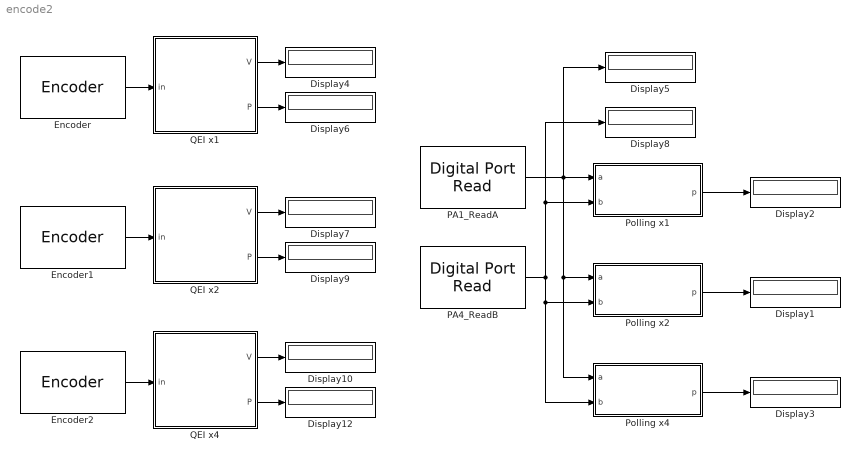
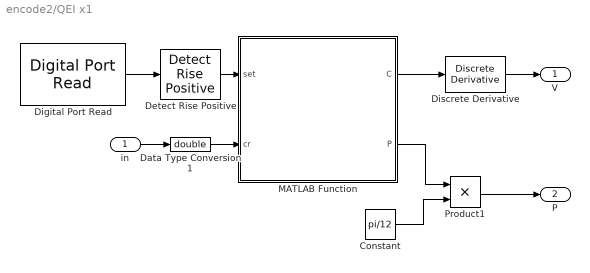
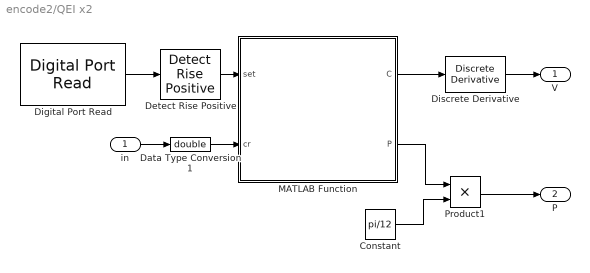
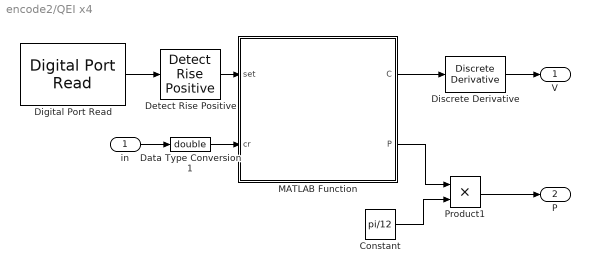
== matlab function encode2/Polling x2 ==
function p = fcn(a,b)
    persistent pos;
    persistent trig;
    if isempty(trig)
        trig = 1;
        pos = 0;
    end
    if a-b == -1 && trig
        pos = pos + 1;
        trig = 2;
    elseif a-b == 1 && trig
        pos = pos -1;
        trig = 2;
    end

    if a == 0 && b == 0 
        trig = 0;
    end

    if a-b == 1 && trig == 0
        pos = pos + 1;
        trig = -1;
    elseif a-b == -1 && trig == 0
        pos = pos -1;
        trig = 1;
    end

    if a == 1 && b == 1
        trig = 1;
    end
    p = pos;
end

== matlab function encode2/Polling x1 ==
function p = fcn(a,b)
    persistent pos;
    persistent trig;
    if isempty(trig)
        trig = 1;
        pos = 0;
    end
    if a-b == -1 && trig
        pos = pos + 1;
        trig = 0;
    elseif a-b == 1 && trig
        pos = pos -1;
        trig = 0;
    end

    if a == 1 && b == 1
        trig = 1;
    end
    p = pos;
end

== matlab function encode2/Polling x4 ==
function p = fcn(a,b)
    persistent pos;
    persistent trigA;
    persistent trigB;
    if isempty(trigA)
        trigA = 1;
        trigB = 1;
        pos = 0;
    end
    if a-b == -1 && trigA
        pos = pos + 1;
        trigA = 2;
    elseif a-b == 1 && trigA
        pos = pos -1;
        trigA = 2;
    end


    if a-b == -1 && trigA == 0
        pos = pos + 1;
        trigA = -1;
    elseif a-b == 1 && trigA == 0
        pos = pos -1;
        trigA = -1;
    end


    if b-a == 1 && trigB
        pos = pos + 1;
        trigB = 2;
    elseif b-a == -1 && trigB
        pos = pos - 1;
        trigB = 2;
    end

    if b-a == 1 && trigB == 0
        pos = pos + 1;
        trigB = -1;
    elseif b-a == -1 && trigB == 0
        pos = pos - 1;
        trigB = -1;
    end

    if a == 0 && b == 0
        trigA = 0;
        trigB = 0;
    end

    if a == 1 && b == 1
        trigA = 1;
        trigB = 1;
    end
    p = pos;
end

== matlab function encode2/QEI x1/MATLAB Function ==
function [C,P] = fcn(set,cr)
    persistent pr;
    persistent hom;
    persistent ps;
    max = 2048;

    if isempty(pr)
        pr = cr;
        hom = 0;
        ps = 0;
    end

    delta = cr - pr;

    if delta <= -1*(max/2)
        delta = delta + max + 1;
    elseif delta >= max/2
        delta = delta -max - 1;
    end

    if set
        hom = ps;
    end
    ps = ps + delta;
    C = ps - hom;
    pr = cr;
    P = C;
end

== matlab function encode2/QEI x2/MATLAB Function ==
function [C,P] = fcn(set,cr)
    persistent pr;
    persistent hom;
    persistent ps;
    max = 2048;

    if isempty(pr)
        pr = cr;
        hom = 0;
        ps = 0;
    end

    delta = cr - pr;

    if delta <= -1*(max/2)
        delta = delta + max + 1;
    elseif delta >= max/2
        delta = delta -max - 1;
    end

    if set
        hom = ps;
    end
    ps = ps + delta;
    C = ps - hom;
    pr = cr;
    P = C;
end

== matlab function encode2/QEI x4/MATLAB Function ==
function [C,P] = fcn(set,cr)
    persistent pr;
    persistent hom;
    persistent ps;
    max = 2048;

    if isempty(pr)
        pr = cr;
        hom = 0;
        ps = 0;
    end

    delta = cr - pr;

    if delta <= -1*(max/2)
        delta = delta + max + 1;
    elseif delta >= max/2
        delta = delta -max - 1;
    end

    if set
        hom = ps;
    end
    ps = ps + delta;
    C = ps - hom;
    pr = cr;
    P = C;
end

/*
 * Academic License - for use in teaching, academic research, and meeting
 * course requirements at degree granting institutions only.  Not for
 * government, commercial, or other organizational use.
 *
 * File: encode2.c
 *
 * Code generated for Simulink model 'encode2'.
 *
 * Model version                  : 1.4
 * Simulink Coder version         : 24.2 (R2024b) 21-Jun-2024
 * C/C++ source code generated on : Fri Nov  1 00:22:41 2024
 *
 * Target selection: ert.tlc
 * Embedded hardware selection: ARM Compatible->ARM Cortex-M
 * Code generation objectives: Unspecified
 * Validation result: Not run
 */

#include "encode2.h"
#include "rtwtypes.h"
#include "encode2_types.h"
#include "encode2_private.h"
#include "stm_timer_ll.h"

/* Named constants for MATLAB Function: '<S6>/MATLAB Function' */
#define encode2_CALL_EVENT             (-1)

/* Block signals (default storage) */
B_encode2_T encode2_B;

/* Block states (default storage) */
DW_encode2_T encode2_DW;

/* Real-time model */
static RT_MODEL_encode2_T encode2_M_;
RT_MODEL_encode2_T *const encode2_M = &encode2_M_;

/* Forward declaration for local functions */
static void encode2_SystemCore_setup_ed(stm32cube_blocks_EncoderBlock_T *obj);
static void encode2_SystemCore_setup(stm32cube_blocks_EncoderBlock_T *obj);
static void encode2_SystemCore_setup_e(stm32cube_blocks_EncoderBlock_T *obj);

/* System initialize for atomic system: */
void encode2_DigitalPortRead_Init(DW_DigitalPortRead_encode2_T *localDW)
{
  /* Start for MATLABSystem: '<S19>/Digital Port Read' */
  localDW->objisempty = true;
  localDW->obj.isInitialized = 1;
}

/* Output and update for atomic system: */
void encode2_DigitalPortRead(B_DigitalPortRead_encode2_T *localB)
{
  uint32_T pinReadLoc;

  /* MATLABSystem: '<S19>/Digital Port Read' */
  pinReadLoc = LL_GPIO_ReadInputPort(GPIOC);

  /* MATLABSystem: '<S19>/Digital Port Read' */
  localB->DigitalPortRead = ((pinReadLoc & 8192U) != 0U);
}

/*
 * System initialize for atomic system:
 *    '<S6>/MATLAB Function'
 *    '<S7>/MATLAB Function'
 *    '<S8>/MATLAB Function'
 */
void encode2_MATLABFunction_Init(DW_MATLABFunction_encode2_T *localDW)
{
  localDW->sfEvent = encode2_CALL_EVENT;
}

/*
 * Output and update for atomic system:
 *    '<S6>/MATLAB Function'
 *    '<S7>/MATLAB Function'
 *    '<S8>/MATLAB Function'
 */
void encode2_MATLABFunction(boolean_T rtu_set, real_T rtu_cr, real_T *rty_C,
  real_T *rty_P, DW_MATLABFunction_encode2_T *localDW)
{
  real_T delta;
  localDW->sfEvent = encode2_CALL_EVENT;
  if (!localDW->pr_not_empty) {
    localDW->pr = rtu_cr;
    localDW->pr_not_empty = true;
    localDW->hom_not_empty = true;
    localDW->ps_not_empty = true;
  }

  delta = rtu_cr - localDW->pr;
  if (delta <= -1024.0) {
    delta = (delta + 2048.0) + 1.0;
  } else if (delta >= 1024.0) {
    delta = (delta - 2048.0) - 1.0;
  }

  if (rtu_set) {
    localDW->hom = localDW->ps;
  }

  localDW->ps += delta;
  delta = localDW->ps - localDW->hom;
  localDW->pr = rtu_cr;
  *rty_P = delta;
  *rty_C = delta;
}

static void encode2_SystemCore_setup_ed(stm32cube_blocks_EncoderBlock_T *obj)
{
  uint8_T ChannelInfo;
  TIM_Type_T b;
  boolean_T isSlaveModeTriggerEnabled;

  /* Start for MATLABSystem: '<Root>/Encoder2' */
  obj->isInitialized = 1;
  b.PeripheralPtr = TIM3;
  b.isCenterAlignedMode = false;

  /* Start for MATLABSystem: '<Root>/Encoder2' */
  b.repetitionCounter = 0U;
  obj->TimerHandle = Timer_Handle_Init(&b);
  enableTimerInterrupts(obj->TimerHandle, 0);
  ChannelInfo = ENABLE_CH;

  /* Start for MATLABSystem: '<Root>/Encoder2' */
  enableTimerChannel1(obj->TimerHandle, ChannelInfo);
  enableTimerChannel2(obj->TimerHandle, ChannelInfo);
  isSlaveModeTriggerEnabled = isSlaveTriggerModeEnabled(obj->TimerHandle);
  if (!isSlaveModeTriggerEnabled) {
    /* Start for MATLABSystem: '<Root>/Encoder2' */
    enableCounter(obj->TimerHandle, false);
  }

  obj->isSetupComplete = true;
}

static void encode2_SystemCore_setup(stm32cube_blocks_EncoderBlock_T *obj)
{
  uint8_T ChannelInfo;
  TIM_Type_T b;
  boolean_T isSlaveModeTriggerEnabled;

  /* Start for MATLABSystem: '<Root>/Encoder' */
  obj->isInitialized = 1;
  b.PeripheralPtr = TIM1;
  b.isCenterAlignedMode = false;

  /* Start for MATLABSystem: '<Root>/Encoder' */
  b.repetitionCounter = 0U;
  obj->TimerHandle = Timer_Handle_Init(&b);
  enableTimerInterrupts(obj->TimerHandle, 0);
  ChannelInfo = ENABLE_CH;

  /* Start for MATLABSystem: '<Root>/Encoder' */
  enableTimerChannel1(obj->TimerHandle, ChannelInfo);
  enableTimerChannel2(obj->TimerHandle, ChannelInfo);
  isSlaveModeTriggerEnabled = isSlaveTriggerModeEnabled(obj->TimerHandle);
  if (!isSlaveModeTriggerEnabled) {
    /* Start for MATLABSystem: '<Root>/Encoder' */
    enableCounter(obj->TimerHandle, false);
  }

  obj->isSetupComplete = true;
}

static void encode2_SystemCore_setup_e(stm32cube_blocks_EncoderBlock_T *obj)
{
  uint8_T ChannelInfo;
  TIM_Type_T b;
  boolean_T isSlaveModeTriggerEnabled;

  /* Start for MATLABSystem: '<Root>/Encoder1' */
  obj->isInitialized = 1;
  b.PeripheralPtr = TIM4;
  b.isCenterAlignedMode = false;

  /* Start for MATLABSystem: '<Root>/Encoder1' */
  b.repetitionCounter = 0U;
  obj->TimerHandle = Timer_Handle_Init(&b);
  enableTimerInterrupts(obj->TimerHandle, 0);
  ChannelInfo = ENABLE_CH;

  /* Start for MATLABSystem: '<Root>/Encoder1' */
  enableTimerChannel1(obj->TimerHandle, ChannelInfo);
  enableTimerChannel2(obj->TimerHandle, ChannelInfo);
  isSlaveModeTriggerEnabled = isSlaveTriggerModeEnabled(obj->TimerHandle);
  if (!isSlaveModeTriggerEnabled) {
    /* Start for MATLABSystem: '<Root>/Encoder1' */
    enableCounter(obj->TimerHandle, false);
  }

  obj->isSetupComplete = true;
}

/* Model step function */
void encode2_step(void)
{
  real_T C;
  real_T P;
  real_T P_b;
  real_T P_p;
  int32_T tmp;
  uint32_T pinReadLoc;
  boolean_T tmp_0;
  boolean_T tmp_1;

  /* MATLABSystem: '<S10>/Digital Port Read' */
  pinReadLoc = LL_GPIO_ReadInputPort(GPIOA);

  /* MATLABSystem: '<S10>/Digital Port Read' */
  encode2_B.DigitalPortRead_g = ((pinReadLoc & 2U) != 0U);

  /* MATLABSystem: '<S12>/Digital Port Read' */
  pinReadLoc = LL_GPIO_ReadInputPort(GPIOA);

  /* MATLABSystem: '<S12>/Digital Port Read' */
  encode2_B.DigitalPortRead = ((pinReadLoc & 16U) != 0U);

  /* MATLAB Function: '<Root>/Polling x2' incorporates:
   *  MATLAB Function: '<Root>/Polling x1'
   *  MATLAB Function: '<Root>/Polling x4'
   */
  tmp = encode2_B.DigitalPortRead_g - encode2_B.DigitalPortRead;
  if ((tmp == -1) && (encode2_DW.tr != 0.0)) {
    encode2_DW.ps++;
    encode2_DW.tr = 2.0;
  } else if ((tmp == 1) && (encode2_DW.tr != 0.0)) {
    encode2_DW.ps--;
    encode2_DW.tr = 2.0;
  }

  tmp_0 = !encode2_B.DigitalPortRead_g;
  tmp_1 = !encode2_B.DigitalPortRead;
  if (tmp_0 && tmp_1) {
    encode2_DW.tr = 0.0;
  }

  if ((tmp == 1) && (encode2_DW.tr == 0.0)) {
    encode2_DW.ps++;
    encode2_DW.tr = -1.0;
  } else if ((tmp == -1) && (encode2_DW.tr == 0.0)) {
    encode2_DW.ps--;
    encode2_DW.tr = 1.0;
  }

  if (encode2_B.DigitalPortRead_g && encode2_B.DigitalPortRead) {
    encode2_DW.tr = 1.0;
  }

  encode2_B.p_l = encode2_DW.ps;

  /* End of MATLAB Function: '<Root>/Polling x2' */
  /* MATLAB Function: '<Root>/Polling x1' */
  if (encode2_B.DigitalPortRead_g && encode2_B.DigitalPortRead) {
    encode2_DW.tr_m = 1.0;
  }

  if ((tmp == -1) && (encode2_DW.tr_m != 0.0)) {
    encode2_DW.ps_d++;
    encode2_DW.tr_m = 0.0;
  } else if ((tmp == 1) && (encode2_DW.tr_m != 0.0)) {
    encode2_DW.ps_d--;
    encode2_DW.tr_m = 0.0;
  }

  encode2_B.p_e = encode2_DW.ps_d;

  /* MATLAB Function: '<Root>/Polling x4' */
  if ((tmp == -1) && (encode2_DW.trigA != 0.0)) {
    encode2_DW.pos++;
    encode2_DW.trigA = 2.0;
  } else if ((tmp == 1) && (encode2_DW.trigA != 0.0)) {
    encode2_DW.pos--;
    encode2_DW.trigA = 2.0;
  }

  if ((tmp == -1) && (encode2_DW.trigA == 0.0)) {
    encode2_DW.pos++;
    encode2_DW.trigA = -1.0;
  } else if ((tmp == 1) && (encode2_DW.trigA == 0.0)) {
    encode2_DW.pos--;
    encode2_DW.trigA = -1.0;
  }

  tmp = encode2_B.DigitalPortRead - encode2_B.DigitalPortRead_g;
  if ((tmp == 1) && (encode2_DW.trigB != 0.0)) {
    encode2_DW.pos++;
    encode2_DW.trigB = 2.0;
  } else if ((tmp == -1) && (encode2_DW.trigB != 0.0)) {
    encode2_DW.pos--;
    encode2_DW.trigB = 2.0;
  }

  if ((tmp == 1) && (encode2_DW.trigB == 0.0)) {
    encode2_DW.pos++;
    encode2_DW.trigB = -1.0;
  } else if ((tmp == -1) && (encode2_DW.trigB == 0.0)) {
    encode2_DW.pos--;
    encode2_DW.trigB = -1.0;
  }

  if (tmp_0 && tmp_1) {
    encode2_DW.trigA = 0.0;
    encode2_DW.trigB = 0.0;
  }

  if (encode2_B.DigitalPortRead_g && encode2_B.DigitalPortRead) {
    encode2_DW.trigA = 1.0;
    encode2_DW.trigB = 1.0;
  }

  encode2_B.p = encode2_DW.pos;
  encode2_DigitalPortRead(&encode2_B.DigitalPortRead_d);

  /* MATLABSystem: '<Root>/Encoder2' */
  encode2_B.Encoder2 = getTimerCounterValueForG4(encode2_DW.obj.TimerHandle,
    false, NULL);

  /* MATLAB Function: '<S8>/MATLAB Function' incorporates:
   *  DataTypeConversion: '<S8>/Data Type Conversion1'
   *  RelationalOperator: '<S27>/FixPt Relational Operator'
   *  RelationalOperator: '<S31>/Compare'
   *  UnitDelay: '<S27>/Delay Input1'
   *
   * Block description for '<S27>/Delay Input1':
   *
   *  Store in Global RAM
   */
  encode2_MATLABFunction(((int32_T)encode2_B.DigitalPortRead_d.DigitalPortRead >
    (int32_T)encode2_DW.DelayInput1_DSTATE), (real_T)encode2_B.Encoder2, &C, &P,
    &encode2_DW.sf_MATLABFunction_p);

  /* Product: '<S8>/Product1' incorporates:
   *  Constant: '<S8>/Constant'
   */
  encode2_B.Product1 = P * 0.26179938779914941;

  /* SampleTimeMath: '<S29>/TSamp'
   *
   * About '<S29>/TSamp':
   *  y = u * K where K = 1 / ( w * Ts )
   *   */
  C *= 100.0;

  /* Sum: '<S29>/Diff' incorporates:
   *  UnitDelay: '<S29>/UD'
   *
   * Block description for '<S29>/Diff':
   *
   *  Add in CPU
   *
   * Block description for '<S29>/UD':
   *
   *  Store in Global RAM
   */
  encode2_B.Diff = C - encode2_DW.UD_DSTATE;
  encode2_DigitalPortRead(&encode2_B.DigitalPortRead_f);

  /* MATLABSystem: '<Root>/Encoder' */
  encode2_B.Encoder = getTimerCounterValueForG4(encode2_DW.obj_p.TimerHandle,
    false, NULL);

  /* MATLAB Function: '<S6>/MATLAB Function' incorporates:
   *  DataTypeConversion: '<S6>/Data Type Conversion1'
   *  RelationalOperator: '<S13>/FixPt Relational Operator'
   *  RelationalOperator: '<S17>/Compare'
   *  UnitDelay: '<S13>/Delay Input1'
   *
   * Block description for '<S13>/Delay Input1':
   *
   *  Store in Global RAM
   */
  encode2_MATLABFunction(((int32_T)encode2_B.DigitalPortRead_f.DigitalPortRead >
    (int32_T)encode2_DW.DelayInput1_DSTATE_b), (real_T)encode2_B.Encoder, &P,
    &P_b, &encode2_DW.sf_MATLABFunction);

  /* Product: '<S6>/Product1' incorporates:
   *  Constant: '<S6>/Constant'
   */
  encode2_B.Product1_n = P_b * 0.26179938779914941;

  /* SampleTimeMath: '<S15>/TSamp'
   *
   * About '<S15>/TSamp':
   *  y = u * K where K = 1 / ( w * Ts )
   *   */
  P *= 100.0;

  /* Sum: '<S15>/Diff' incorporates:
   *  UnitDelay: '<S15>/UD'
   *
   * Block description for '<S15>/Diff':
   *
   *  Add in CPU
   *
   * Block description for '<S15>/UD':
   *
   *  Store in Global RAM
   */
  encode2_B.Diff_m = P - encode2_DW.UD_DSTATE_e;
  encode2_DigitalPortRead(&encode2_B.DigitalPortRead_j);

  /* MATLABSystem: '<Root>/Encoder1' */
  encode2_B.Encoder1 = getTimerCounterValueForG4(encode2_DW.obj_g.TimerHandle,
    false, NULL);

  /* MATLAB Function: '<S7>/MATLAB Function' incorporates:
   *  DataTypeConversion: '<S7>/Data Type Conversion1'
   *  RelationalOperator: '<S20>/FixPt Relational Operator'
   *  RelationalOperator: '<S24>/Compare'
   *  UnitDelay: '<S20>/Delay Input1'
   *
   * Block description for '<S20>/Delay Input1':
   *
   *  Store in Global RAM
   */
  encode2_MATLABFunction(((int32_T)encode2_B.DigitalPortRead_j.DigitalPortRead >
    (int32_T)encode2_DW.DelayInput1_DSTATE_d), (real_T)encode2_B.Encoder1, &P_b,
    &P_p, &encode2_DW.sf_MATLABFunction_i);

  /* Product: '<S7>/Product1' incorporates:
   *  Constant: '<S7>/Constant'
   */
  encode2_B.Product1_g = P_p * 0.26179938779914941;

  /* SampleTimeMath: '<S22>/TSamp'
   *
   * About '<S22>/TSamp':
   *  y = u * K where K = 1 / ( w * Ts )
   *   */
  P_b *= 100.0;

  /* Sum: '<S22>/Diff' incorporates:
   *  UnitDelay: '<S22>/UD'
   *
   * Block description for '<S22>/Diff':
   *
   *  Add in CPU
   *
   * Block description for '<S22>/UD':
   *
   *  Store in Global RAM
   */
  encode2_B.Diff_p = P_b - encode2_DW.UD_DSTATE_l;

  /* Update for UnitDelay: '<S27>/Delay Input1' incorporates:
   *  RelationalOperator: '<S31>/Compare'
   *
   * Block description for '<S27>/Delay Input1':
   *
   *  Store in Global RAM
   */
  encode2_DW.DelayInput1_DSTATE = encode2_B.DigitalPortRead_d.DigitalPortRead;

  /* Update for UnitDelay: '<S29>/UD'
   *
   * Block description for '<S29>/UD':
   *
   *  Store in Global RAM
   */
  encode2_DW.UD_DSTATE = C;

  /* Update for UnitDelay: '<S13>/Delay Input1' incorporates:
   *  RelationalOperator: '<S17>/Compare'
   *
   * Block description for '<S13>/Delay Input1':
   *
   *  Store in Global RAM
   */
  encode2_DW.DelayInput1_DSTATE_b = encode2_B.DigitalPortRead_f.DigitalPortRead;

  /* Update for UnitDelay: '<S15>/UD'
   *
   * Block description for '<S15>/UD':
   *
   *  Store in Global RAM
   */
  encode2_DW.UD_DSTATE_e = P;

  /* Update for UnitDelay: '<S20>/Delay Input1' incorporates:
   *  RelationalOperator: '<S24>/Compare'
   *
   * Block description for '<S20>/Delay Input1':
   *
   *  Store in Global RAM
   */
  encode2_DW.DelayInput1_DSTATE_d = encode2_B.DigitalPortRead_j.DigitalPortRead;

  /* Update for UnitDelay: '<S22>/UD'
   *
   * Block description for '<S22>/UD':
   *
   *  Store in Global RAM
   */
  encode2_DW.UD_DSTATE_l = P_b;

  /* Update absolute time for base rate */
  /* The "clockTick0" counts the number of times the code of this task has
   * been executed. The absolute time is the multiplication of "clockTick0"
   * and "Timing.stepSize0". Size of "clockTick0" ensures timer will not
   * overflow during the application lifespan selected.
   */
  encode2_M->Timing.taskTime0 =
    ((time_T)(++encode2_M->Timing.clockTick0)) * encode2_M->Timing.stepSize0;
}
